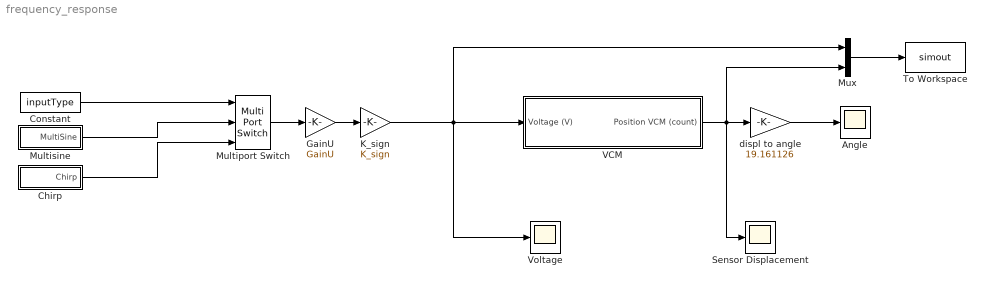
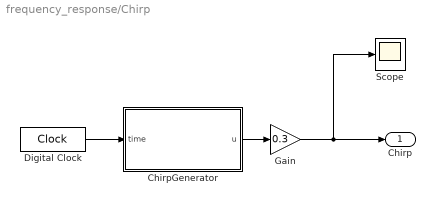
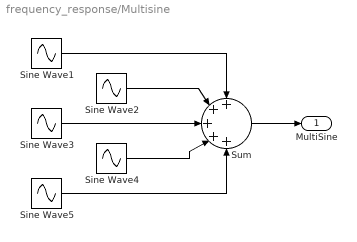
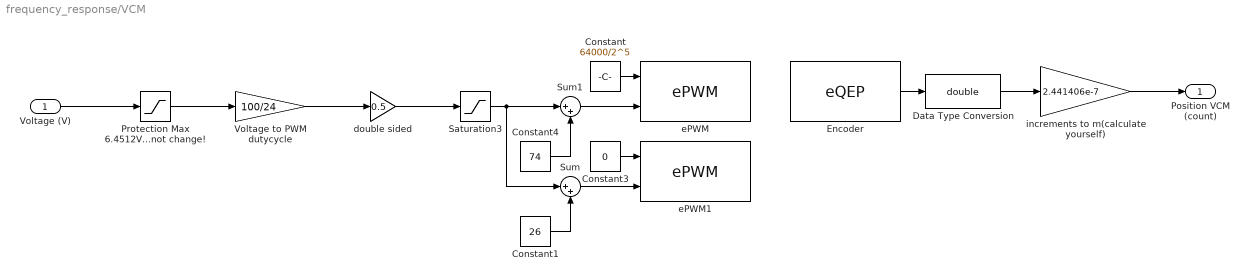
== matlab function frequency_response/Chirp/ChirpGenerator ==
function u = ChirpGenerator(time, T, f_start, f_end, ts)
% specify
% ts        [s] sample time
% T         [s] period of sweep
% f_start   [Hz] initial chirp frequency
% f_end     [Hz] final chirp frequency

N = T/ts;                                       % [-] samples per period
Fres = 1/T;                                     % [Hz] frequency resolution / base frequency
time = rem(time,T);                               % [s] wrap time after window;
f_start = floor(f_start*T)*Fres;                % [Hz] round start frequency to multiple of base freuqency (makes input zero at end)
f_end = floor(f_end*T)*Fres;                    % [Hz] round end frequency to multiple of base freuqency (makes input zero at end)
f_act = (f_start + (f_end-f_start)/T*time/2);  % [Hz] frequency of current time sample
u = sin(log10(f_act)*2*pi*time);                      % [iu] input signal (sweep)

/*
 * Academic License - for use in teaching, academic research, and meeting
 * course requirements at degree granting institutions only.  Not for
 * government, commercial, or other organizational use.
 *
 * File: frequency_response.c
 *
 * Code generated for Simulink model 'frequency_response'.
 *
 * Model version                  : 13.6
 * Simulink Coder version         : 26.1 (R2026a) 20-Nov-2025
 * C/C++ source code generated on : Wed Jun 24 14:09:17 2026
 *
 * Target selection: ert.tlc
 * Embedded hardware selection: Texas Instruments->C2000
 * Code generation objectives: Unspecified
 * Validation result: Not run
 */

#include "frequency_response.h"
#include "frequency_response_private.h"
#include <math.h>
#include "rtwtypes.h"
#include <string.h>

/* Block signals (default storage) */
B_frequency_response_T frequency_response_B;

/* Block states (default storage) */
DW_frequency_response_T frequency_response_DW;

/* Real-time model */
static RT_MODEL_frequency_response_T frequency_response_M_;
RT_MODEL_frequency_response_T *const frequency_response_M =
  &frequency_response_M_;

/* Model step function */
void frequency_response_step(void)
{
  real_T Fres;
  real_T b_f_start;
  real_T b_time;

  /* Sin: '<S2>/Sine Wave1' */
  if (frequency_response_DW.systemEnable != 0L) {
    Fres = frequency_response_P.multisineFrequencies[0] *
      ((frequency_response_M->Timing.clockTick0) * 0.0005);
    frequency_response_DW.lastSin = sin(Fres);
    frequency_response_DW.lastCos = cos(Fres);
    frequency_response_DW.systemEnable = 0L;
  }

  /* Sin: '<S2>/Sine Wave2' */
  if (frequency_response_DW.systemEnable_i != 0L) {
    Fres = frequency_response_P.multisineFrequencies[1] *
      ((frequency_response_M->Timing.clockTick0) * 0.0005);
    frequency_response_DW.lastSin_e = sin(Fres);
    frequency_response_DW.lastCos_d = cos(Fres);
    frequency_response_DW.systemEnable_i = 0L;
  }

  /* Sin: '<S2>/Sine Wave3' */
  if (frequency_response_DW.systemEnable_iq != 0L) {
    Fres = frequency_response_P.multisineFrequencies[2] *
      ((frequency_response_M->Timing.clockTick0) * 0.0005);
    frequency_response_DW.lastSin_o = sin(Fres);
    frequency_response_DW.lastCos_dm = cos(Fres);
    frequency_response_DW.systemEnable_iq = 0L;
  }

  /* Sin: '<S2>/Sine Wave4' */
  if (frequency_response_DW.systemEnable_im != 0L) {
    Fres = frequency_response_P.multisineFrequencies[3] *
      ((frequency_response_M->Timing.clockTick0) * 0.0005);
    frequency_response_DW.lastSin_i = sin(Fres);
    frequency_response_DW.lastCos_i = cos(Fres);
    frequency_response_DW.systemEnable_im = 0L;
  }

  /* Sin: '<S2>/Sine Wave5' */
  if (frequency_response_DW.systemEnable_n != 0L) {
    Fres = frequency_response_P.multisineFrequencies[4] *
      ((frequency_response_M->Timing.clockTick0) * 0.0005);
    frequency_response_DW.lastSin_l = sin(Fres);
    frequency_response_DW.lastCos_f = cos(Fres);
    frequency_response_DW.systemEnable_n = 0L;
  }

  /* MATLAB Function: '<S1>/ChirpGenerator' incorporates:
   *  DigitalClock: '<S1>/Digital Clock'
   */
  Fres = 1.0 / frequency_response_P.T;
  b_time = fmod(((frequency_response_M->Timing.clockTick0) * 0.0005),
                frequency_response_P.T);
  b_f_start = floor(frequency_response_P.f_start * frequency_response_P.T) *
    Fres;

  /* Gain: '<S1>/Gain' incorporates:
   *  MATLAB Function: '<S1>/ChirpGenerator'
   */
  frequency_response_B.Gain = sin(log10((floor(frequency_response_P.f_end *
    frequency_response_P.T) * Fres - b_f_start) / frequency_response_P.T *
    b_time / 2.0 + b_f_start) * 2.0 * 3.141592653589793 * b_time) *
    frequency_response_P.Gain_Gain;

  /* MultiPortSwitch: '<Root>/Multiport Switch' incorporates:
   *  Constant: '<Root>/Constant'
   *  Sin: '<S2>/Sine Wave1'
   *  Sin: '<S2>/Sine Wave2'
   *  Sin: '<S2>/Sine Wave3'
   *  Sin: '<S2>/Sine Wave4'
   *  Sin: '<S2>/Sine Wave5'
   *  Sum: '<S2>/Sum'
   */
  if ((int16_T)frequency_response_P.inputType == 0) {
    Fres = ((((((frequency_response_DW.lastSin *
                 frequency_response_P.SineWave1_PCos +
                 frequency_response_DW.lastCos *
                 frequency_response_P.SineWave1_PSin) *
                frequency_response_P.SineWave1_HCos +
                (frequency_response_DW.lastCos *
                 frequency_response_P.SineWave1_PCos -
                 frequency_response_DW.lastSin *
                 frequency_response_P.SineWave1_PSin) *
                frequency_response_P.SineWave1_Hsin) *
               frequency_response_P.SineWave1_Amp +
               frequency_response_P.SineWave1_Bias) +
              (((frequency_response_DW.lastSin_e *
                 frequency_response_P.SineWave2_PCos +
                 frequency_response_DW.lastCos_d *
                 frequency_response_P.SineWave2_PSin) *
                frequency_response_P.SineWave2_HCos +
                (frequency_response_DW.lastCos_d *
                 frequency_response_P.SineWave2_PCos -
                 frequency_response_DW.lastSin_e *
                 frequency_response_P.SineWave2_PSin) *
                frequency_response_P.SineWave2_Hsin) *
               frequency_response_P.SineWave2_Amp +
               frequency_response_P.SineWave2_Bias)) +
             (((frequency_response_DW.lastSin_o *
                frequency_response_P.SineWave3_PCos +
                frequency_response_DW.lastCos_dm *
                frequency_response_P.SineWave3_PSin) *
               frequency_response_P.SineWave3_HCos +
               (frequency_response_DW.lastCos_dm *
                frequency_response_P.SineWave3_PCos -
                frequency_response_DW.lastSin_o *
                frequency_response_P.SineWave3_PSin) *
               frequency_response_P.SineWave3_Hsin) *
              frequency_response_P.SineWave3_Amp +
              frequency_response_P.SineWave3_Bias)) +
            (((frequency_response_DW.lastSin_i *
               frequency_response_P.SineWave4_PCos +
               frequency_response_DW.lastCos_i *
               frequency_response_P.SineWave4_PSin) *
              frequency_response_P.SineWave4_HCos +
              (frequency_response_DW.lastCos_i *
               frequency_response_P.SineWave4_PCos -
               frequency_response_DW.lastSin_i *
               frequency_response_P.SineWave4_PSin) *
              frequency_response_P.SineWave4_Hsin) *
             frequency_response_P.SineWave4_Amp +
             frequency_response_P.SineWave4_Bias)) +
      (((frequency_response_DW.lastSin_l * frequency_response_P.SineWave5_PCos +
         frequency_response_DW.lastCos_f * frequency_response_P.SineWave5_PSin) *
        frequency_response_P.SineWave5_HCos + (frequency_response_DW.lastCos_f *
         frequency_response_P.SineWave5_PCos - frequency_response_DW.lastSin_l *
         frequency_response_P.SineWave5_PSin) *
        frequency_response_P.SineWave5_Hsin) *
       frequency_response_P.SineWave5_Amp + frequency_response_P.SineWave5_Bias);
  } else {
    Fres = frequency_response_B.Gain;
  }

  /* Gain: '<Root>/K_sign' incorporates:
   *  Gain: '<Root>/GainU'
   *  MultiPortSwitch: '<Root>/Multiport Switch'
   */
  frequency_response_B.K_sign = frequency_response_P.GainU * Fres *
    frequency_response_P.K_sign;

  /* S-Function (c280xqep): '<S3>/Encoder' */
  {
    frequency_response_B.Encoder = EQep2Regs.QPOSCNT;/*eQEP Position Counter*/
  }

  /* Gain: '<S3>/increments to m(calculate yourself)' incorporates:
   *  DataTypeConversion: '<S3>/Data Type Conversion'
   */
  frequency_response_B.incrementstomcalculateyourself =
    frequency_response_P.incrementstomcalculateyourself_ * (real_T)
    frequency_response_B.Encoder;

  /* SignalConversion generated from: '<Root>/To Workspace' */
  frequency_response_B.TmpSignalConversionAt_asyncqueu[0] =
    frequency_response_B.K_sign;
  frequency_response_B.TmpSignalConversionAt_asyncqueu[1] =
    frequency_response_B.incrementstomcalculateyourself;

  /* Saturate: '<S3>/Protection Max 6.4512V Do not change!' */
  if (frequency_response_B.K_sign >
      frequency_response_P.ProtectionMax64512VDonotchange_) {
    Fres = frequency_response_P.ProtectionMax64512VDonotchange_;
  } else if (frequency_response_B.K_sign <
             frequency_response_P.ProtectionMax64512VDonotchang_l) {
    Fres = frequency_response_P.ProtectionMax64512VDonotchang_l;
  } else {
    Fres = frequency_response_B.K_sign;
  }

  /* Gain: '<S3>/double sided' incorporates:
   *  Gain: '<S3>/Voltage to PWM dutycycle'
   *  Saturate: '<S3>/Protection Max 6.4512V Do not change!'
   */
  Fres = frequency_response_P.VoltagetoPWMdutycycle_Gain * Fres *
    frequency_response_P.doublesided_Gain;

  /* Saturate: '<S3>/Saturation3' */
  if (Fres > frequency_response_P.Saturation3_UpperSat) {
    Fres = frequency_response_P.Saturation3_UpperSat;
  } else if (Fres < frequency_response_P.Saturation3_LowerSat) {
    Fres = frequency_response_P.Saturation3_LowerSat;
  }

  /* End of Saturate: '<S3>/Saturation3' */

  /* S-Function (c2802xpwm): '<S3>/ePWM' incorporates:
   *  Constant: '<S3>/Constant'
   *  Constant: '<S3>/Constant4'
   *  Sum: '<S3>/Sum1'
   */
  uint16_T tbprdValue4Outputs = EPwm4Regs.TBPRD;

  {
    EPwm4Regs.TBPRD = (uint16_T)(frequency_response_P.Constant_Value);
  }

  /*-- Update CMPA value for ePWM4 --*/
  {
    EPwm4Regs.CMPA.bit.CMPA = (uint16_T)((uint32_T)EPwm4Regs.TBPRD * (Fres +
      frequency_response_P.Constant4_Value) * 0.01);
  }

  /* S-Function (c2802xpwm): '<S3>/ePWM1' incorporates:
   *  Constant: '<S3>/Constant1'
   *  Constant: '<S3>/Constant3'
   *  Sum: '<S3>/Sum'
   */
  uint16_T tbprdValue5Outputs = EPwm5Regs.TBPRD;
  EPwm5Regs.TBPHS.bit.TBPHS = (uint16_T)frequency_response_P.Constant3_Value;

  /*-- Update CMPA value for ePWM5 --*/
  {
    EPwm5Regs.CMPA.bit.CMPA = (uint16_T)((uint32_T)EPwm5Regs.TBPRD * (Fres +
      frequency_response_P.Constant1_Value) * 0.01);
  }

  /* Update for Sin: '<S2>/Sine Wave1' */
  Fres = frequency_response_DW.lastSin;
  frequency_response_DW.lastSin = frequency_response_DW.lastSin *
    frequency_response_P.SineWave1_HCos + frequency_response_DW.lastCos *
    frequency_response_P.SineWave1_Hsin;
  frequency_response_DW.lastCos = frequency_response_DW.lastCos *
    frequency_response_P.SineWave1_HCos - Fres *
    frequency_response_P.SineWave1_Hsin;

  /* Update for Sin: '<S2>/Sine Wave2' */
  Fres = frequency_response_DW.lastSin_e;
  frequency_response_DW.lastSin_e = frequency_response_DW.lastSin_e *
    frequency_response_P.SineWave2_HCos + frequency_response_DW.lastCos_d *
    frequency_response_P.SineWave2_Hsin;
  frequency_response_DW.lastCos_d = frequency_response_DW.lastCos_d *
    frequency_response_P.SineWave2_HCos - Fres *
    frequency_response_P.SineWave2_Hsin;

  /* Update for Sin: '<S2>/Sine Wave3' */
  Fres = frequency_response_DW.lastSin_o;
  frequency_response_DW.lastSin_o = frequency_response_DW.lastSin_o *
    frequency_response_P.SineWave3_HCos + frequency_response_DW.lastCos_dm *
    frequency_response_P.SineWave3_Hsin;
  frequency_response_DW.lastCos_dm = frequency_response_DW.lastCos_dm *
    frequency_response_P.SineWave3_HCos - Fres *
    frequency_response_P.SineWave3_Hsin;

  /* Update for Sin: '<S2>/Sine Wave4' */
  Fres = frequency_response_DW.lastSin_i;
  frequency_response_DW.lastSin_i = frequency_response_DW.lastSin_i *
    frequency_response_P.SineWave4_HCos + frequency_response_DW.lastCos_i *
    frequency_response_P.SineWave4_Hsin;
  frequency_response_DW.lastCos_i = frequency_response_DW.lastCos_i *
    frequency_response_P.SineWave4_HCos - Fres *
    frequency_response_P.SineWave4_Hsin;

  /* Update for Sin: '<S2>/Sine Wave5' */
  Fres = frequency_response_DW.lastSin_l;
  frequency_response_DW.lastSin_l = frequency_response_DW.lastSin_l *
    frequency_response_P.SineWave5_HCos + frequency_response_DW.lastCos_f *
    frequency_response_P.SineWave5_Hsin;
  frequency_response_DW.lastCos_f = frequency_response_DW.lastCos_f *
    frequency_response_P.SineWave5_HCos - Fres *
    frequency_response_P.SineWave5_Hsin;

  /* Update absolute time for base rate */
  /* The "clockTick0" counts the number of times the code of this task has
   * been executed. The resolution of this integer timer is 0.0005, which is the step size
   * of the task. Size of "clockTick0" ensures timer will not overflow during the
   * application lifespan selected.
   */
  frequency_response_M->Timing.clockTick0++;
}
